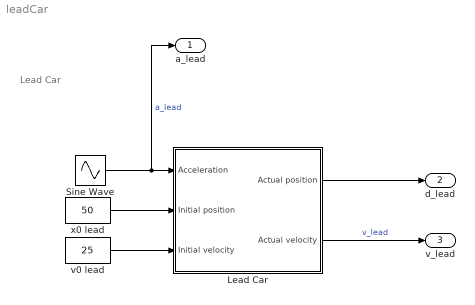
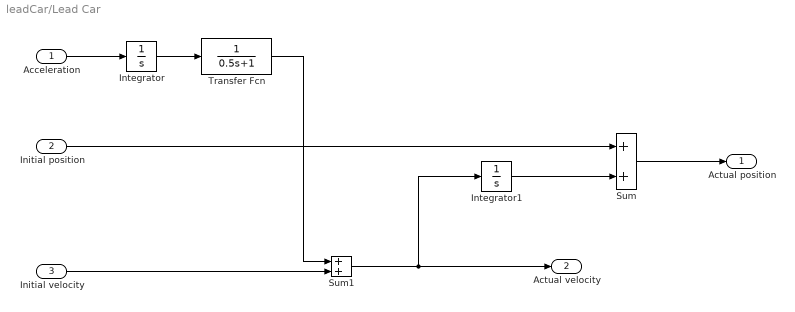
//
// Academic License - for use in teaching, academic research, and meeting
// course requirements at degree granting institutions only.  Not for
// government, commercial, or other organizational use.
//
// File: leadCar.cpp
//
// Code generated for Simulink model 'leadCar'.
//
// Model version                  : 1.4
// Simulink Coder version         : 24.2 (R2024b) 21-Jun-2024
// C/C++ source code generated on : Wed Jun 18 12:30:29 2025
//
// Target selection: ert.tlc
// Embedded hardware selection: Apple->ARM64
// Code generation objectives: Unspecified
// Validation result: Not run
//
#include "leadCar.h"
#include <cmath>
#include "rtwtypes.h"

//
// This function updates continuous states using the ODE3 fixed-step
// solver algorithm
//
void leadCar::rt_ertODEUpdateContinuousStates(RTWSolverInfo *si )
{
  // Solver Matrices
  static const real_T rt_ODE3_A[3]{
    1.0/2.0, 3.0/4.0, 1.0
  };

  static const real_T rt_ODE3_B[3][3]{
    { 1.0/2.0, 0.0, 0.0 },

    { 0.0, 3.0/4.0, 0.0 },

    { 2.0/9.0, 1.0/3.0, 4.0/9.0 }
  };

  time_T t { rtsiGetT(si) };

  time_T tnew { rtsiGetSolverStopTime(si) };

  time_T h { rtsiGetStepSize(si) };

  real_T *x { rtsiGetContStates(si) };

  ODE3_IntgData *id { static_cast<ODE3_IntgData *>(rtsiGetSolverData(si)) };

  real_T *y { id->y };

  real_T *f0 { id->f[0] };

  real_T *f1 { id->f[1] };

  real_T *f2 { id->f[2] };

  real_T hB[3];
  int_T i;
  int_T nXc { 3 };

  rtsiSetSimTimeStep(si,MINOR_TIME_STEP);

  // Save the state values at time t in y, we'll use x as ynew.
  (void) std::memcpy(y, x,
                     static_cast<uint_T>(nXc)*sizeof(real_T));

  // Assumes that rtsiSetT and ModelOutputs are up-to-date
  // f0 = f(t,y)
  rtsiSetdX(si, f0);
  leadCar_derivatives();

  // f(:,2) = feval(odefile, t + hA(1), y + f*hB(:,1), args(:)(*));
  hB[0] = h * rt_ODE3_B[0][0];
  for (i = 0; i < nXc; i++) {
    x[i] = y[i] + (f0[i]*hB[0]);
  }

  rtsiSetT(si, t + h*rt_ODE3_A[0]);
  rtsiSetdX(si, f1);
  this->step();
  leadCar_derivatives();

  // f(:,3) = feval(odefile, t + hA(2), y + f*hB(:,2), args(:)(*));
  for (i = 0; i <= 1; i++) {
    hB[i] = h * rt_ODE3_B[1][i];
  }

  for (i = 0; i < nXc; i++) {
    x[i] = y[i] + (f0[i]*hB[0] + f1[i]*hB[1]);
  }

  rtsiSetT(si, t + h*rt_ODE3_A[1]);
  rtsiSetdX(si, f2);
  this->step();
  leadCar_derivatives();

  // tnew = t + hA(3);
  // ynew = y + f*hB(:,3);
  for (i = 0; i <= 2; i++) {
    hB[i] = h * rt_ODE3_B[2][i];
  }

  for (i = 0; i < nXc; i++) {
    x[i] = y[i] + (f0[i]*hB[0] + f1[i]*hB[1] + f2[i]*hB[2]);
  }

  rtsiSetT(si, tnew);
  rtsiSetSimTimeStep(si,MAJOR_TIME_STEP);
}

// Model step function
void leadCar::step()
{
  if ((&leadCar_M)->isMajorTimeStep()) {
    // set solver stop time
    rtsiSetSolverStopTime(&(&leadCar_M)->solverInfo,(((&leadCar_M)
      ->Timing.clockTick0+1)*(&leadCar_M)->Timing.stepSize0));
  }                                    // end MajorTimeStep

  // Update absolute time of base rate at minor time step
  if ((&leadCar_M)->isMinorTimeStep()) {
    (&leadCar_M)->Timing.t[0] = rtsiGetT(&(&leadCar_M)->solverInfo);
  }

  {
    real_T lastSin_tmp;
    if ((&leadCar_M)->isMajorTimeStep()) {
      // Sin: '<Root>/Sine Wave'
      if (leadCar_DW.systemEnable != 0) {
        lastSin_tmp = (((&leadCar_M)->Timing.clockTick1) * 0.1);
        leadCar_DW.lastSin = std::sin(0.2 * lastSin_tmp);
        leadCar_DW.lastCos = std::cos(0.2 * lastSin_tmp);
        leadCar_DW.systemEnable = 0;
      }

      // Outport: '<Root>/a_lead' incorporates:
      //   Sin: '<Root>/Sine Wave'

      leadCar_Y.a_lead = ((leadCar_DW.lastSin * 0.99980000666657776 +
                           leadCar_DW.lastCos * -0.019998666693333084) *
                          0.99980000666657776 + (leadCar_DW.lastCos *
        0.99980000666657776 - leadCar_DW.lastSin * -0.019998666693333084) *
                          0.019998666693333084) * 0.6;
    }

    // Outport: '<Root>/d_lead' incorporates:
    //   Constant: '<Root>/x0 lead'
    //   Integrator: '<S1>/Integrator1'
    //   Sum: '<S1>/Sum'

    leadCar_Y.d_lead = leadCar_X.Integrator1_CSTATE + 50.0;

    // Sum: '<S1>/Sum1' incorporates:
    //   Constant: '<Root>/v0 lead'
    //   TransferFcn: '<S1>/Transfer Fcn'

    leadCar_B.Sum1 = 2.0 * leadCar_X.TransferFcn_CSTATE + 25.0;

    // Outport: '<Root>/v_lead'
    leadCar_Y.v_lead = leadCar_B.Sum1;

    // Integrator: '<S1>/Integrator'
    leadCar_B.Integrator = leadCar_X.Integrator_CSTATE;
  }

  if ((&leadCar_M)->isMajorTimeStep()) {
    real_T HoldSine;
    if ((&leadCar_M)->isMajorTimeStep()) {
      // Update for Sin: '<Root>/Sine Wave'
      HoldSine = leadCar_DW.lastSin;
      leadCar_DW.lastSin = leadCar_DW.lastSin * 0.99980000666657776 +
        leadCar_DW.lastCos * 0.019998666693333084;
      leadCar_DW.lastCos = leadCar_DW.lastCos * 0.99980000666657776 - HoldSine *
        0.019998666693333084;
    }
  }                                    // end MajorTimeStep

  if ((&leadCar_M)->isMajorTimeStep()) {
    rt_ertODEUpdateContinuousStates(&(&leadCar_M)->solverInfo);

    // Update absolute time for base rate
    // The "clockTick0" counts the number of times the code of this task has
    //  been executed. The absolute time is the multiplication of "clockTick0"
    //  and "Timing.stepSize0". Size of "clockTick0" ensures timer will not
    //  overflow during the application lifespan selected.

    ++(&leadCar_M)->Timing.clockTick0;
    (&leadCar_M)->Timing.t[0] = rtsiGetSolverStopTime(&(&leadCar_M)->solverInfo);

    {
      // Update absolute timer for sample time: [0.1s, 0.0s]
      // The "clockTick1" counts the number of times the code of this task has
      //  been executed. The resolution of this integer timer is 0.1, which is the step size
      //  of the task. Size of "clockTick1" ensures timer will not overflow during the
      //  application lifespan selected.

      (&leadCar_M)->Timing.clockTick1++;
    }
  }                                    // end MajorTimeStep
}
